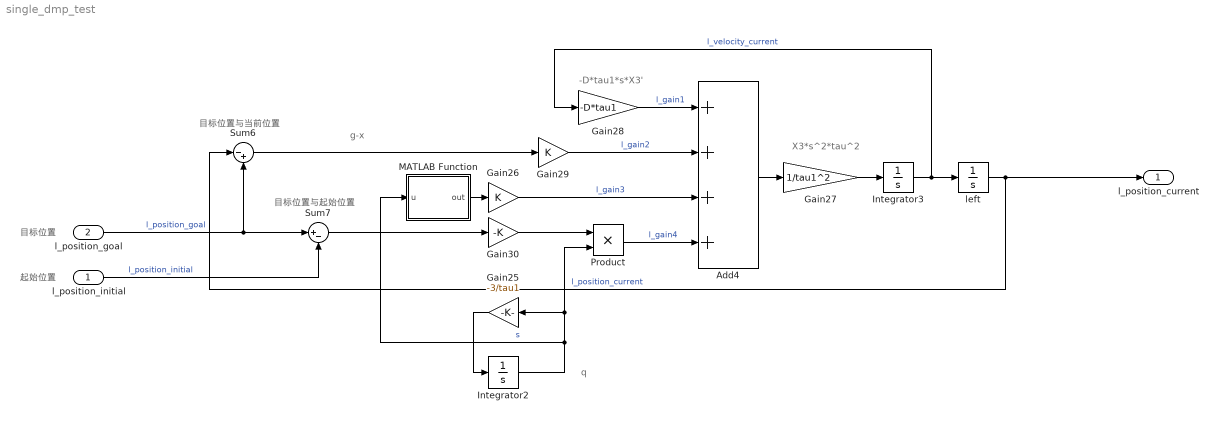
== matlab function single_dmp_test/MATLAB Function ==
function out = fcn(u, width_new, weight, cc_new)


% if(u>2.5)
%     y=1;
% elseif(u>=0&&u<=2.5)
%     y=0;
% else
%         y=-1;
% end


tem=exp(-width_new.*(u-cc_new).^2)';
y=(weight * tem * u) / sum(tem) ;

out = y;

//
// File: single_dmp_test.cpp
//
// Code generated for Simulink model 'single_dmp_test'.
//
// Model version                  : 1.5
// Simulink Coder version         : 9.4 (R2020b) 29-Jul-2020
// C/C++ source code generated on : Thu Dec  7 13:55:38 2023
//
// Target selection: ert.tlc
// Embedded hardware selection: Intel->x86-64 (Windows64)
// Code generation objectives:
//    1. Execution efficiency
//    2. RAM efficiency
// Validation result: Not run
//
#include "single_dmp_test.h"

// Private macros used by the generated code to access rtModel
#ifndef rtmIsMajorTimeStep
#define rtmIsMajorTimeStep(rtm)        (((rtm)->Timing.simTimeStep) == MAJOR_TIME_STEP)
#endif

#ifndef rtmIsMinorTimeStep
#define rtmIsMinorTimeStep(rtm)        (((rtm)->Timing.simTimeStep) == MINOR_TIME_STEP)
#endif

#ifndef rtmSetTPtr
#define rtmSetTPtr(rtm, val)           ((rtm)->Timing.t = (val))
#endif

// private model entry point functions
extern void single_dmp_test_derivatives(real_T arg_l_position_current[3], const
  real_T arg_l_position_initial[3], const real_T arg_l_position_goal[3]);

// This function updates continuous states using the ODE8 fixed-step
//  solver algorithm

void SignalDmp::rt_ertODEUpdateContinuousStates(RTWSolverInfo *si , real_T
  arg_l_position_current[3], const real_T arg_l_position_initial[3], const
  real_T arg_l_position_goal[3])
{
  // Solver Matrices
#define rtNSTAGES                      13

  static real_T rt_ODE8_B[13] = {
    4.174749114153025E-2, 0.0, 0.0, 0.0,
    0.0, -5.54523286112393E-2, 2.393128072011801E-1, 7.03510669403443E-1,
    -7.597596138144609E-1, 6.605630309222863E-1, 1.581874825101233E-1,
    -2.381095387528628E-1, 2.5E-1
  };

  static real_T rt_ODE8_C[13] = {
    0.0, 5.555555555555556E-2, 8.333333333333333E-2, 1.25E-1,
    3.125E-1, 3.75E-1, 1.475E-1, 4.65E-1,
    5.648654513822596E-1, 6.5E-1, 9.246562776405044E-1, 1.0, 1.0
  };

  static real_T rt_ODE8_A[13][13] = {
    // rt_ODE8_A[0][]
    { 0.0, 0.0, 0.0, 0.0,
      0.0, 0.0, 0.0, 0.0,
      0.0, 0.0, 0.0, 0.0, 0.0 },

    // rt_ODE8_A[1][]
    { 5.555555555555556E-2, 0.0, 0.0, 0.0,
      0.0, 0.0, 0.0, 0.0,
      0.0, 0.0, 0.0, 0.0, 0.0 },

    // rt_ODE8_A[2][]
    { 2.083333333333333E-2, 6.25E-2, 0.0, 0.0,
      0.0, 0.0, 0.0, 0.0,
      0.0, 0.0, 0.0, 0.0, 0.0 },

    // rt_ODE8_A[3][]
    { 3.125E-2, 0.0, 9.375E-2, 0.0,
      0.0, 0.0, 0.0, 0.0,
      0.0, 0.0, 0.0, 0.0, 0.0 },

    // rt_ODE8_A[4][]
    { 3.125E-1, 0.0, -1.171875, 1.171875,
      0.0, 0.0, 0.0, 0.0,
      0.0, 0.0, 0.0, 0.0, 0.0 },

    // rt_ODE8_A[5][]
    { 3.75E-2, 0.0, 0.0, 1.875E-1,
      1.5E-1, 0.0, 0.0, 0.0,
      0.0, 0.0, 0.0, 0.0, 0.0 },

    // rt_ODE8_A[6][]
    { 4.791013711111111E-2, 0.0, 0.0, 1.122487127777778E-1,
      -2.550567377777778E-2, 1.284682388888889E-2, 0.0, 0.0,
      0.0, 0.0, 0.0, 0.0, 0.0 },

    // rt_ODE8_A[7][]
    { 1.691798978729228E-2, 0.0, 0.0, 3.878482784860432E-1,
      3.597736985150033E-2, 1.969702142156661E-1, -1.727138523405018E-1, 0.0,
      0.0, 0.0, 0.0, 0.0, 0.0 },

    // rt_ODE8_A[8][]
    { 6.90957533591923E-2, 0.0, 0.0, -6.342479767288542E-1,
      -1.611975752246041E-1, 1.386503094588253E-1, 9.409286140357563E-1,
      2.11636326481944E-1,
      0.0, 0.0, 0.0, 0.0, 0.0 },

    // rt_ODE8_A[9][]
    { 1.835569968390454E-1, 0.0, 0.0, -2.468768084315592,
      -2.912868878163005E-1, -2.647302023311738E-2, 2.8478387641928,
      2.813873314698498E-1,
      1.237448998633147E-1, 0.0, 0.0, 0.0, 0.0 },

    // rt_ODE8_A[10][]
    { -1.215424817395888, 0.0, 0.0, 1.667260866594577E1,
      9.157418284168179E-1, -6.056605804357471, -1.600357359415618E1,
      1.484930308629766E1,
      -1.337157573528985E1, 5.134182648179638, 0.0, 0.0, 0.0 },

    // rt_ODE8_A[11][]
    { 2.588609164382643E-1, 0.0, 0.0, -4.774485785489205,
      -4.350930137770325E-1, -3.049483332072241, 5.577920039936099,
      6.155831589861039,
      -5.062104586736938, 2.193926173180679, 1.346279986593349E-1, 0.0, 0.0 },

    // rt_ODE8_A[12][]
    { 8.224275996265075E-1, 0.0, 0.0, -1.165867325727766E1,
      -7.576221166909362E-1, 7.139735881595818E-1, 1.207577498689006E1,
      -2.127659113920403,
      1.990166207048956, -2.342864715440405E-1, 1.758985777079423E-1, 0.0, 0.0 },
  };

  time_T t = rtsiGetT(si);
  time_T tnew = rtsiGetSolverStopTime(si);
  time_T h = rtsiGetStepSize(si);
  real_T *x = rtsiGetContStates(si);
  ODE8_IntgData *intgData = static_cast<ODE8_IntgData *>(rtsiGetSolverData(si));
  real_T *deltaY = intgData->deltaY;
  real_T *x0 = intgData->x0;
  real_T* f[rtNSTAGES];
  int idx,stagesIdx,statesIdx;
  double deltaX;
  int_T nXc = 7;
  rtsiSetSimTimeStep(si,MINOR_TIME_STEP);
  f[0] = intgData->f[0];
  f[1] = intgData->f[1];
  f[2] = intgData->f[2];
  f[3] = intgData->f[3];
  f[4] = intgData->f[4];
  f[5] = intgData->f[5];
  f[6] = intgData->f[6];
  f[7] = intgData->f[7];
  f[8] = intgData->f[8];
  f[9] = intgData->f[9];
  f[10] = intgData->f[10];
  f[11] = intgData->f[11];
  f[12] = intgData->f[12];

  // Save the state values at time t in y and x0
  (void) std::memset(deltaY, 0,
                     static_cast<uint_T>(nXc)*sizeof(real_T));
  (void) std::memcpy(x0, x,
                     nXc*sizeof(real_T));
  for (stagesIdx=0;stagesIdx<rtNSTAGES;stagesIdx++) {
    (void) std::memcpy(x, x0,
                       static_cast<uint_T>(nXc)*sizeof(real_T));
    for (statesIdx=0;statesIdx<nXc;statesIdx++) {
      deltaX = 0;
      for (idx=0;idx<stagesIdx;idx++) {
        deltaX = deltaX + h*rt_ODE8_A[stagesIdx][idx]*f[idx][statesIdx];
      }

      x[statesIdx] = x0[statesIdx] + deltaX;
    }

    if (stagesIdx==0) {
      rtsiSetdX(si, f[stagesIdx]);
      single_dmp_test_derivatives(arg_l_position_current, arg_l_position_initial,
        arg_l_position_goal);
    } else {
      (stagesIdx==rtNSTAGES-1)? rtsiSetT(si, tnew) : rtsiSetT(si, t + h*
        rt_ODE8_C[stagesIdx]);
      rtsiSetdX(si, f[stagesIdx]);
      this->step(arg_l_position_current, arg_l_position_initial,
                 arg_l_position_goal);
      single_dmp_test_derivatives(arg_l_position_current, arg_l_position_initial,
        arg_l_position_goal);
    }

    for (statesIdx=0;statesIdx<nXc;statesIdx++) {
      deltaY[statesIdx] = deltaY[statesIdx] + h*rt_ODE8_B[stagesIdx]*f[stagesIdx]
        [statesIdx];
    }
  }

  for (statesIdx=0;statesIdx<nXc;statesIdx++) {
    x[statesIdx] = x0[statesIdx] + deltaY[statesIdx];
  }

  rtsiSetSimTimeStep(si,MAJOR_TIME_STEP);
}

// Model step function
void SignalDmp::step(real_T arg_l_position_current[3], const real_T
                     arg_l_position_initial[3], const real_T
                     arg_l_position_goal[3])
{
  real_T tem[41];
  real_T tmp[3];
  real_T a;
  int32_T i;
  int32_T k;
  if (rtmIsMajorTimeStep((&rtM))) {
    // set solver stop time
    rtsiSetSolverStopTime(&(&rtM)->solverInfo,(((&rtM)->Timing.clockTick0+1)*
      (&rtM)->Timing.stepSize0));
  }                                    // end MajorTimeStep

  // Update absolute time of base rate at minor time step
  if (rtmIsMinorTimeStep((&rtM))) {
    (&rtM)->Timing.t[0] = rtsiGetT(&(&rtM)->solverInfo);
  }

  // Outport: '<Root>/l_position_current' incorporates:
  //   Integrator: '<Root>/left'

  arg_l_position_current[0] = rtX.left_CSTATE[0];

  // Integrator: '<Root>/Integrator3'
  rtDW.l_velocity_current[0] = rtX.Integrator3_CSTATE[0];

  // Outport: '<Root>/l_position_current' incorporates:
  //   Integrator: '<Root>/left'

  arg_l_position_current[1] = rtX.left_CSTATE[1];

  // Integrator: '<Root>/Integrator3'
  rtDW.l_velocity_current[1] = rtX.Integrator3_CSTATE[1];

  // Outport: '<Root>/l_position_current' incorporates:
  //   Integrator: '<Root>/left'

  arg_l_position_current[2] = rtX.left_CSTATE[2];

  // Integrator: '<Root>/Integrator3'
  rtDW.l_velocity_current[2] = rtX.Integrator3_CSTATE[2];

  // MATLAB Function: '<Root>/MATLAB Function' incorporates:
  //   Integrator: '<Root>/Integrator2'

  for (k = 0; k < 41; k++) {
    a = rtX.Integrator2_CSTATE - rtConstP.MATLABFunction_cc_new[k];
    tem[k] = std::exp(a * a * -rtConstP.MATLABFunction_width_new[k]);
  }

  a = tem[0];
  for (k = 0; k < 40; k++) {
    a += tem[k + 1];
  }

  for (k = 0; k < 3; k++) {
    tmp[k] = 0.0;
    for (i = 0; i < 41; i++) {
      tmp[k] += rtConstP.MATLABFunction_weight[3 * i + k] * tem[i];
    }

    // Gain: '<Root>/Gain27' incorporates:
    //   Gain: '<Root>/Gain26'
    //   Gain: '<Root>/Gain28'
    //   Gain: '<Root>/Gain29'
    //   Gain: '<Root>/Gain30'
    //   Inport: '<Root>/l_position_goal'
    //   Inport: '<Root>/l_position_initial'
    //   Integrator: '<Root>/Integrator2'
    //   Integrator: '<Root>/left'
    //   Product: '<Root>/Product'
    //   Sum: '<Root>/Add4'
    //   Sum: '<Root>/Sum6'
    //   Sum: '<Root>/Sum7'

    rtDW.Gain27[k] = ((((arg_l_position_goal[k] - rtX.left_CSTATE[k]) * 1050.0 +
                        -194.421 * rtDW.l_velocity_current[k]) + tmp[k] *
                       rtX.Integrator2_CSTATE / a * 1050.0) +
                      (arg_l_position_goal[k] - arg_l_position_initial[k]) *
                      -1050.0 * rtX.Integrator2_CSTATE) * 0.1111111111111111;
  }

  // End of MATLAB Function: '<Root>/MATLAB Function'

  // Gain: '<Root>/Gain25' incorporates:
  //   Integrator: '<Root>/Integrator2'

  rtDW.Gain25 = -rtX.Integrator2_CSTATE;
  if (rtmIsMajorTimeStep((&rtM))) {
    rt_ertODEUpdateContinuousStates(&(&rtM)->solverInfo, arg_l_position_current,
      arg_l_position_initial, arg_l_position_goal);

    // Update absolute time for base rate
    // The "clockTick0" counts the number of times the code of this task has
    //  been executed. The absolute time is the multiplication of "clockTick0"
    //  and "Timing.stepSize0". Size of "clockTick0" ensures timer will not
    //  overflow during the application lifespan selected.

    ++(&rtM)->Timing.clockTick0;
    (&rtM)->Timing.t[0] = rtsiGetSolverStopTime(&(&rtM)->solverInfo);

    {
      // Update absolute timer for sample time: [0.005s, 0.0s]
      // The "clockTick1" counts the number of times the code of this task has
      //  been executed. The resolution of this integer timer is 0.005, which is the step size
      //  of the task. Size of "clockTick1" ensures timer will not overflow during the
      //  application lifespan selected.

      (&rtM)->Timing.clockTick1++;
    }
  }                                    // end MajorTimeStep
}
